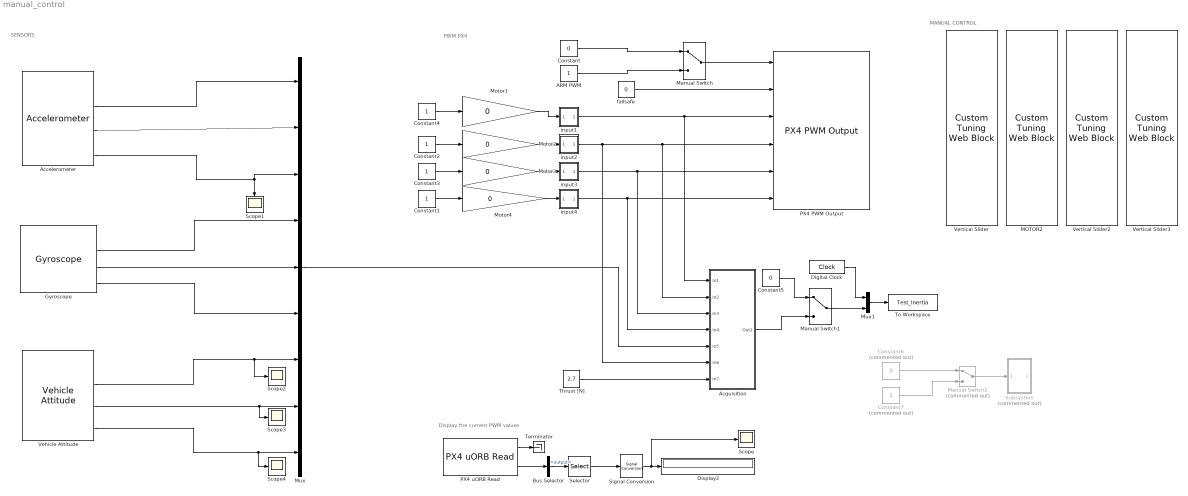
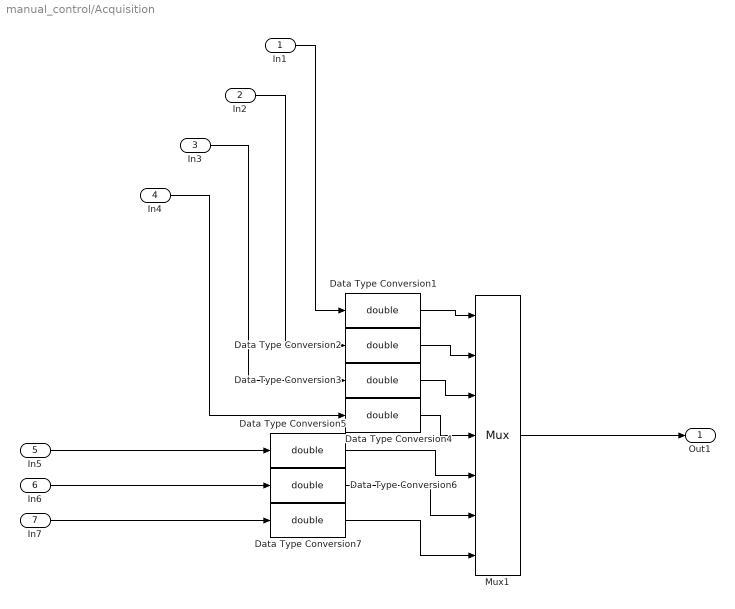
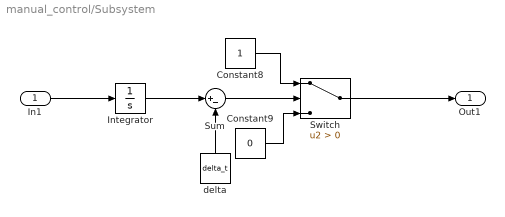
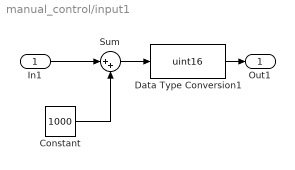
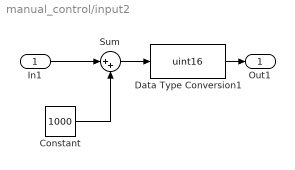
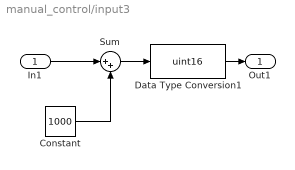
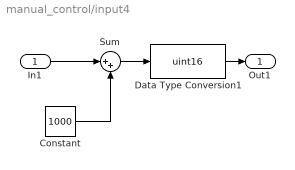
//
// Academic License - for use in teaching, academic research, and meeting
// course requirements at degree granting institutions only.  Not for
// government, commercial, or other organizational use.
//
// File: manual_control.cpp
//
// Code generated for Simulink model 'manual_control'.
//
// Model version                  : 1.36
// Simulink Coder version         : 9.9 (R2023a) 19-Nov-2022
// C/C++ source code generated on : Tue Apr  9 14:44:41 2024
//
// Target selection: ert.tlc
// Embedded hardware selection: ARM Compatible->ARM Cortex
// Code generation objectives: Unspecified
// Validation result: Not run
//
#include "manual_control.h"
#include "manual_control_types.h"
#include "rtwtypes.h"
#include <math.h>

extern "C"
{

#include "rt_nonfinite.h"

}

#include <string.h>
#include "manual_control_private.h"

// Block signals (default storage)
B_manual_control_T manual_control_B;

// Block states (default storage)
DW_manual_control_T manual_control_DW;

// Real-time model
RT_MODEL_manual_control_T manual_control_M_ = RT_MODEL_manual_control_T();
RT_MODEL_manual_control_T *const manual_control_M = &manual_control_M_;

// Forward declaration for local functions
static void manual_control_SystemCore_setup(px4_internal_block_PWM_manual_T *obj,
  boolean_T varargin_1, boolean_T varargin_2);
static void manual_control_SystemCore_setup(px4_internal_block_PWM_manual_T *obj,
  boolean_T varargin_1, boolean_T varargin_2)
{
  uint16_T status;
  obj->isSetupComplete = false;
  obj->isInitialized = 1;
  obj->isMain = true;
  obj->pwmDevObj = MW_PWM_OUTPUT_MAIN_DEVICE_PATH;
  status = pwm_open(&obj->pwmDevHandler, obj->pwmDevObj,
                    &obj->actuatorAdvertiseObj, &obj->armAdvertiseObj);
  obj->errorStatus = static_cast<uint16_T>(obj->errorStatus | status);
  obj->servoCount = 0;
  status = pwm_getServoCount(&obj->pwmDevHandler, &obj->servoCount);
  obj->errorStatus = static_cast<uint16_T>(obj->errorStatus | status);
  if (varargin_1) {
    status = pwm_arm(&obj->pwmDevHandler, &obj->armAdvertiseObj);
    obj->isArmed = true;
  } else {
    status = pwm_disarm(&obj->pwmDevHandler, &obj->armAdvertiseObj);
    obj->isArmed = false;
  }

  obj->errorStatus = static_cast<uint16_T>(obj->errorStatus | status);
  status = pwm_setPWMRate(&obj->pwmDevHandler, obj->isMain);
  obj->errorStatus = static_cast<uint16_T>(obj->errorStatus | status);
  obj->channelMask = 15;
  status = pwm_setChannelMask(&obj->pwmDevHandler, obj->channelMask);
  obj->errorStatus = static_cast<uint16_T>(obj->errorStatus | status);
  status = pwm_setFailsafePWM(&obj->pwmDevHandler, obj->servoCount,
    obj->channelMask, obj->isMain);
  obj->errorStatus = static_cast<uint16_T>(obj->errorStatus | status);
  status = pwm_setDisarmedPWM(&obj->pwmDevHandler, obj->servoCount,
    obj->channelMask, obj->isMain, &obj->actuatorAdvertiseObj);
  obj->errorStatus = static_cast<uint16_T>(obj->errorStatus | status);
  if (obj->isMain) {
    status = pwm_forceFailsafe(&obj->pwmDevHandler, static_cast<int32_T>
      (varargin_2));
    obj->errorStatus = static_cast<uint16_T>(obj->errorStatus | status);
    status = pwm_forceTerminateFailsafe(&obj->pwmDevHandler, 0);
    obj->errorStatus = static_cast<uint16_T>(obj->errorStatus | status);
  }

  obj->isSetupComplete = true;
}

// Model step function
void manual_control_step(void)
{
  real_T tmp;
  int32_T i;
  uint16_T pwmValue[8];
  uint16_T rtb_DataTypeConversion1_a;
  uint16_T rtb_DataTypeConversion1_fx;
  uint16_T rtb_DataTypeConversion1_j;
  uint16_T rtb_DataTypeConversion1_n;
  boolean_T b_varargout_1;

  // Reset subsysRan breadcrumbs
  srClearBC(manual_control_DW.EnabledSubsystem_SubsysRanBC_c);

  // Reset subsysRan breadcrumbs
  srClearBC(manual_control_DW.EnabledSubsystem_SubsysRanBC_f);

  // Reset subsysRan breadcrumbs
  srClearBC(manual_control_DW.EnabledSubsystem_SubsysRanBC_k);

  // Reset subsysRan breadcrumbs
  srClearBC(manual_control_DW.EnabledSubsystem_SubsysRanBC);

  // DigitalClock: '<Root>/Digital Clock'
  manual_control_B.DigitalClock = manual_control_M->Timing.taskTime0;

  // DataTypeConversion: '<S6>/Data Type Conversion1' incorporates:
  //   Constant: '<Root>/Constant4'
  //   Constant: '<S6>/Constant'
  //   Gain: '<Root>/Motor1'
  //   Sum: '<S6>/Sum'

  tmp = floor(manual_control_P.Motor1_Gain * manual_control_P.Constant4_Value +
              manual_control_P.Constant_Value_ah);
  if (rtIsNaN(tmp) || rtIsInf(tmp)) {
    tmp = 0.0;
  } else {
    tmp = fmod(tmp, 65536.0);
  }

  rtb_DataTypeConversion1_n = static_cast<uint16_T>(tmp < 0.0 ?
    static_cast<int32_T>(static_cast<uint16_T>(-static_cast<int16_T>(
    static_cast<uint16_T>(-tmp)))) : static_cast<int32_T>(static_cast<uint16_T>
    (tmp)));

  // End of DataTypeConversion: '<S6>/Data Type Conversion1'

  // DataTypeConversion: '<S7>/Data Type Conversion1' incorporates:
  //   Constant: '<Root>/Constant2'
  //   Constant: '<S7>/Constant'
  //   Gain: '<Root>/Motor2'
  //   Sum: '<S7>/Sum'

  tmp = floor(manual_control_P.Motor2_Gain * manual_control_P.Constant2_Value +
              manual_control_P.Constant_Value_c);
  if (rtIsNaN(tmp) || rtIsInf(tmp)) {
    tmp = 0.0;
  } else {
    tmp = fmod(tmp, 65536.0);
  }

  rtb_DataTypeConversion1_fx = static_cast<uint16_T>(tmp < 0.0 ?
    static_cast<int32_T>(static_cast<uint16_T>(-static_cast<int16_T>(
    static_cast<uint16_T>(-tmp)))) : static_cast<int32_T>(static_cast<uint16_T>
    (tmp)));

  // End of DataTypeConversion: '<S7>/Data Type Conversion1'

  // DataTypeConversion: '<S8>/Data Type Conversion1' incorporates:
  //   Constant: '<Root>/Constant3'
  //   Constant: '<S8>/Constant'
  //   Gain: '<Root>/Motor3'
  //   Sum: '<S8>/Sum'

  tmp = floor(manual_control_P.Motor3_Gain * manual_control_P.Constant3_Value +
              manual_control_P.Constant_Value_h);
  if (rtIsNaN(tmp) || rtIsInf(tmp)) {
    tmp = 0.0;
  } else {
    tmp = fmod(tmp, 65536.0);
  }

  rtb_DataTypeConversion1_a = static_cast<uint16_T>(tmp < 0.0 ?
    static_cast<int32_T>(static_cast<uint16_T>(-static_cast<int16_T>(
    static_cast<uint16_T>(-tmp)))) : static_cast<int32_T>(static_cast<uint16_T>
    (tmp)));

  // End of DataTypeConversion: '<S8>/Data Type Conversion1'

  // DataTypeConversion: '<S9>/Data Type Conversion1' incorporates:
  //   Constant: '<Root>/Constant1'
  //   Constant: '<S9>/Constant'
  //   Gain: '<Root>/Motor4'
  //   Sum: '<S9>/Sum'

  tmp = floor(manual_control_P.Motor4_Gain * manual_control_P.Constant1_Value +
              manual_control_P.Constant_Value_op);
  if (rtIsNaN(tmp) || rtIsInf(tmp)) {
    tmp = 0.0;
  } else {
    tmp = fmod(tmp, 65536.0);
  }

  rtb_DataTypeConversion1_j = static_cast<uint16_T>(tmp < 0.0 ?
    static_cast<int32_T>(static_cast<uint16_T>(-static_cast<int16_T>(
    static_cast<uint16_T>(-tmp)))) : static_cast<int32_T>(static_cast<uint16_T>
    (tmp)));

  // End of DataTypeConversion: '<S9>/Data Type Conversion1'

  // MATLABSystem: '<S10>/SourceBlock'
  b_varargout_1 = uORB_read_step(manual_control_DW.obj_a.orbMetadataObj,
    &manual_control_DW.obj_a.eventStructObj, &manual_control_B.b_varargout_2_c,
    false, 1.0);

  // Outputs for Enabled SubSystem: '<S10>/Enabled Subsystem' incorporates:
  //   EnablePort: '<S11>/Enable'

  if (b_varargout_1) {
    // SignalConversion generated from: '<S11>/In1'
    manual_control_B.In1_lx = manual_control_B.b_varargout_2_c;
    srUpdateBC(manual_control_DW.EnabledSubsystem_SubsysRanBC_c);
  }

  // End of MATLABSystem: '<S10>/SourceBlock'
  // End of Outputs for SubSystem: '<S10>/Enabled Subsystem'

  // SignalConversion generated from: '<S1>/Bus Selector'
  manual_control_B.z = manual_control_B.In1_lx.z;

  // MATLABSystem: '<S15>/SourceBlock'
  b_varargout_1 = uORB_read_step(manual_control_DW.obj.orbMetadataObj,
    &manual_control_DW.obj.eventStructObj, &manual_control_B.b_varargout_2,
    false, 1.0);

  // Outputs for Enabled SubSystem: '<S15>/Enabled Subsystem' incorporates:
  //   EnablePort: '<S16>/Enable'

  if (b_varargout_1) {
    // SignalConversion generated from: '<S16>/In1'
    manual_control_B.In1 = manual_control_B.b_varargout_2;
    srUpdateBC(manual_control_DW.EnabledSubsystem_SubsysRanBC);
  }

  // End of MATLABSystem: '<S15>/SourceBlock'
  // End of Outputs for SubSystem: '<S15>/Enabled Subsystem'

  // SignalConversion generated from: '<S5>/Bus Selector'
  manual_control_B.rollspeed = manual_control_B.In1.rollspeed;

  // SignalConversion generated from: '<S5>/Bus Selector'
  manual_control_B.pitchspeed = manual_control_B.In1.pitchspeed;

  // SignalConversion generated from: '<S5>/Bus Selector'
  manual_control_B.yawspeed = manual_control_B.In1.yawspeed;

  // MATLABSystem: '<S12>/SourceBlock'
  b_varargout_1 = uORB_read_step(manual_control_DW.obj_o.orbMetadataObj,
    &manual_control_DW.obj_o.eventStructObj, &manual_control_B.b_varargout_2_k,
    false, 1.0);

  // Outputs for Enabled SubSystem: '<S12>/Enabled Subsystem' incorporates:
  //   EnablePort: '<S13>/Enable'

  if (b_varargout_1) {
    // SignalConversion generated from: '<S13>/In1'
    manual_control_B.In1_m = manual_control_B.b_varargout_2_k;
    srUpdateBC(manual_control_DW.EnabledSubsystem_SubsysRanBC_f);
  }

  // End of MATLABSystem: '<S12>/SourceBlock'
  // End of Outputs for SubSystem: '<S12>/Enabled Subsystem'

  // ManualSwitch: '<Root>/Manual Switch1'
  if (manual_control_P.ManualSwitch1_CurrentSetting == 1) {
    // ManualSwitch: '<Root>/Manual Switch1' incorporates:
    //   Constant: '<Root>/Constant5'

    for (i = 0; i < 15; i++) {
      manual_control_B.ManualSwitch1[i] = manual_control_P.Constant5_Value;
    }
  } else {
    // ManualSwitch: '<Root>/Manual Switch1' incorporates:
    //   Constant: '<Root>/Thrust [N]'
    //   DataTypeConversion: '<S2>/Data Type Conversion1'
    //   DataTypeConversion: '<S2>/Data Type Conversion2'
    //   DataTypeConversion: '<S2>/Data Type Conversion3'
    //   DataTypeConversion: '<S2>/Data Type Conversion4'
    //   DataTypeConversion: '<S2>/Data Type Conversion5'

    manual_control_B.ManualSwitch1[0] = rtb_DataTypeConversion1_n;
    manual_control_B.ManualSwitch1[1] = rtb_DataTypeConversion1_fx;
    manual_control_B.ManualSwitch1[2] = rtb_DataTypeConversion1_a;
    manual_control_B.ManualSwitch1[3] = rtb_DataTypeConversion1_j;
    manual_control_B.ManualSwitch1[4] = manual_control_B.In1_lx.x;
    manual_control_B.ManualSwitch1[5] = manual_control_B.In1_lx.y;
    manual_control_B.ManualSwitch1[6] = manual_control_B.z;
    manual_control_B.ManualSwitch1[7] = manual_control_B.In1_m.x;
    manual_control_B.ManualSwitch1[8] = manual_control_B.In1_m.y;
    manual_control_B.ManualSwitch1[9] = manual_control_B.In1_m.z;
    manual_control_B.ManualSwitch1[10] = manual_control_B.rollspeed;
    manual_control_B.ManualSwitch1[11] = manual_control_B.pitchspeed;
    manual_control_B.ManualSwitch1[12] = manual_control_B.yawspeed;
    manual_control_B.ManualSwitch1[13] = rtb_DataTypeConversion1_fx;
    manual_control_B.ManualSwitch1[14] = manual_control_P.ThrustN_Value;
  }

  // End of ManualSwitch: '<Root>/Manual Switch1'

  // SignalConversion generated from: '<Root>/To Workspace'
  manual_control_B.TmpSignalConversionAt_asyncqueu[0] =
    manual_control_B.DigitalClock;
  memcpy(&manual_control_B.TmpSignalConversionAt_asyncqueu[1],
         &manual_control_B.ManualSwitch1[0], 15U * sizeof(real_T));

  // MATLABSystem: '<Root>/PX4 PWM Output'
  for (i = 0; i < 8; i++) {
    pwmValue[i] = 0U;
  }

  pwmValue[0] = rtb_DataTypeConversion1_n;
  pwmValue[1] = rtb_DataTypeConversion1_fx;
  pwmValue[2] = rtb_DataTypeConversion1_a;
  pwmValue[3] = rtb_DataTypeConversion1_j;

  // ManualSwitch: '<Root>/Manual Switch' incorporates:
  //   Constant: '<Root>/ARM PWM'
  //   Constant: '<Root>/Constant'

  if (manual_control_P.ManualSwitch_CurrentSetting == 1) {
    b_varargout_1 = manual_control_P.Constant_Value_e;
  } else {
    b_varargout_1 = manual_control_P.ARMPWM_Value;
  }

  // MATLABSystem: '<Root>/PX4 PWM Output' incorporates:
  //   Constant: '<Root>/failsafe'
  //   ManualSwitch: '<Root>/Manual Switch'

  if (b_varargout_1) {
    if (!manual_control_DW.obj_l.isArmed) {
      manual_control_DW.obj_l.isArmed = true;
      rtb_DataTypeConversion1_n = pwm_arm(&manual_control_DW.obj_l.pwmDevHandler,
        &manual_control_DW.obj_l.armAdvertiseObj);
      manual_control_DW.obj_l.errorStatus = static_cast<uint16_T>
        (manual_control_DW.obj_l.errorStatus | rtb_DataTypeConversion1_n);
    }

    rtb_DataTypeConversion1_n = pwm_setServo
      (&manual_control_DW.obj_l.pwmDevHandler,
       manual_control_DW.obj_l.servoCount, manual_control_DW.obj_l.channelMask,
       &pwmValue[0], manual_control_DW.obj_l.isMain,
       &manual_control_DW.obj_l.actuatorAdvertiseObj);
    manual_control_DW.obj_l.errorStatus = static_cast<uint16_T>
      (manual_control_DW.obj_l.errorStatus | rtb_DataTypeConversion1_n);
  } else {
    rtb_DataTypeConversion1_n = pwm_disarm
      (&manual_control_DW.obj_l.pwmDevHandler,
       &manual_control_DW.obj_l.armAdvertiseObj);
    manual_control_DW.obj_l.errorStatus = static_cast<uint16_T>
      (manual_control_DW.obj_l.errorStatus | rtb_DataTypeConversion1_n);
    manual_control_DW.obj_l.isArmed = false;
    rtb_DataTypeConversion1_n = pwm_resetServo
      (&manual_control_DW.obj_l.pwmDevHandler,
       manual_control_DW.obj_l.servoCount, manual_control_DW.obj_l.channelMask,
       manual_control_DW.obj_l.isMain,
       &manual_control_DW.obj_l.actuatorAdvertiseObj);
    manual_control_DW.obj_l.errorStatus = static_cast<uint16_T>
      (manual_control_DW.obj_l.errorStatus | rtb_DataTypeConversion1_n);
  }

  if (manual_control_DW.obj_l.isMain) {
    rtb_DataTypeConversion1_n = pwm_forceFailsafe
      (&manual_control_DW.obj_l.pwmDevHandler, static_cast<int32_T>
       (manual_control_P.failsafe_Value));
    manual_control_DW.obj_l.errorStatus = static_cast<uint16_T>
      (manual_control_DW.obj_l.errorStatus | rtb_DataTypeConversion1_n);
  }

  // MATLABSystem: '<S4>/SourceBlock'
  b_varargout_1 = uORB_read_step(manual_control_DW.obj_m.orbMetadataObj,
    &manual_control_DW.obj_m.eventStructObj, &manual_control_B.b_varargout_2_m,
    false, 1.0);

  // Outputs for Enabled SubSystem: '<S4>/Enabled Subsystem' incorporates:
  //   EnablePort: '<S14>/Enable'

  if (b_varargout_1) {
    // SignalConversion generated from: '<S14>/In1'
    manual_control_B.In1_l = manual_control_B.b_varargout_2_m;
    srUpdateBC(manual_control_DW.EnabledSubsystem_SubsysRanBC_k);
  }

  // End of MATLABSystem: '<S4>/SourceBlock'
  // End of Outputs for SubSystem: '<S4>/Enabled Subsystem'

  // SignalConversion: '<Root>/Signal Conversion'
  manual_control_B.SignalConversion[0] = manual_control_B.In1_l.output[0];
  manual_control_B.SignalConversion[1] = manual_control_B.In1_l.output[1];

  {                                    // Sample time: [0.01s, 0.0s]
  }

  // Update absolute time for base rate
  // The "clockTick0" counts the number of times the code of this task has
  //  been executed. The absolute time is the multiplication of "clockTick0"
  //  and "Timing.stepSize0". Size of "clockTick0" ensures timer will not
  //  overflow during the application lifespan selected.

  manual_control_M->Timing.taskTime0 =
    ((time_T)(++manual_control_M->Timing.clockTick0)) *
    manual_control_M->Timing.stepSize0;
}
